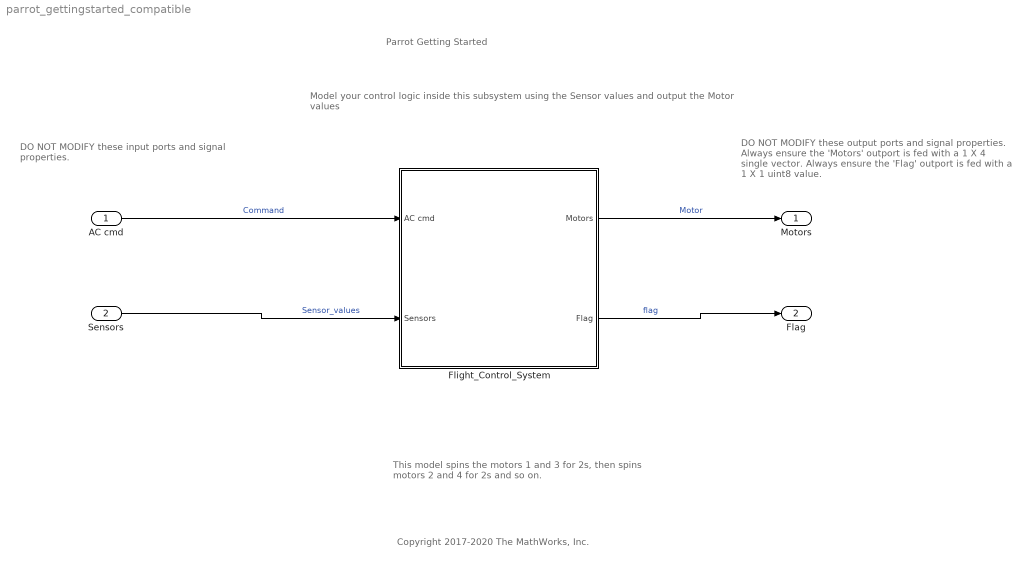
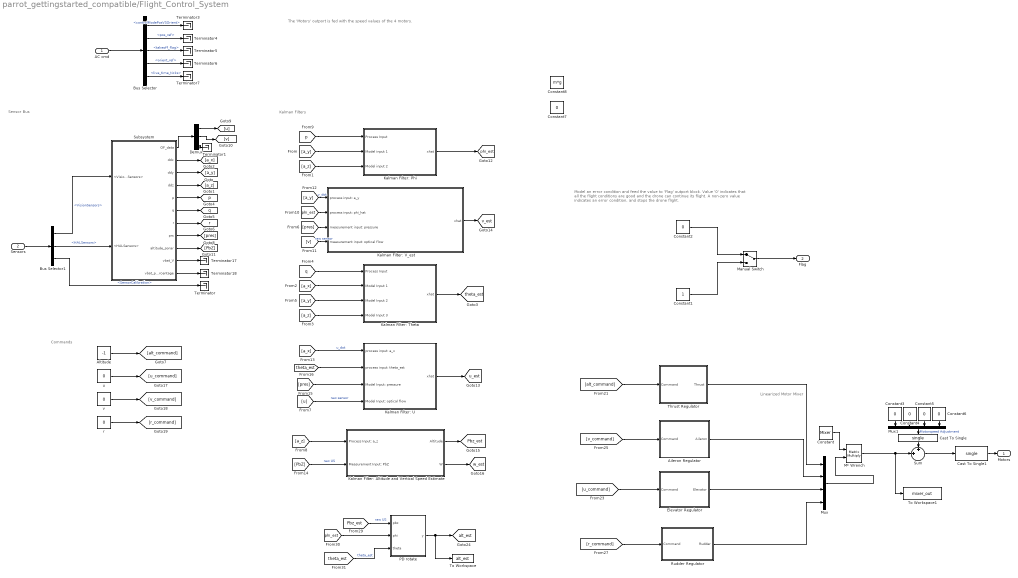
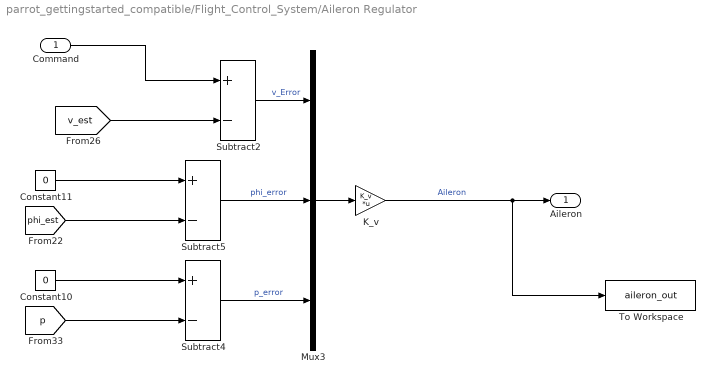
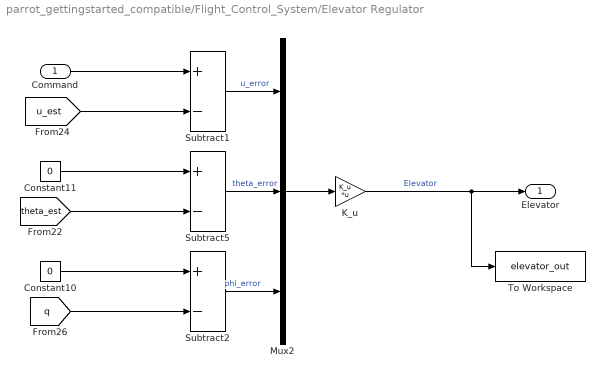
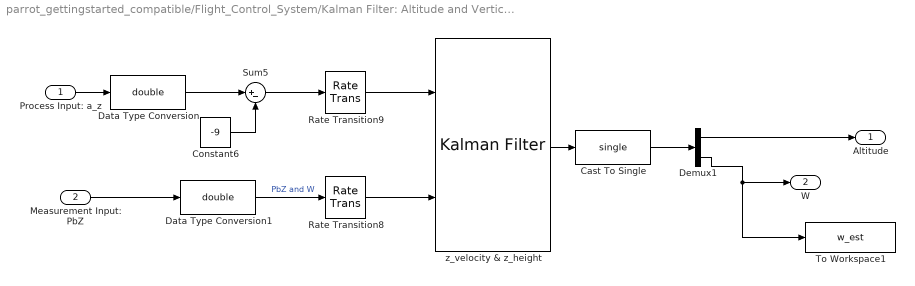
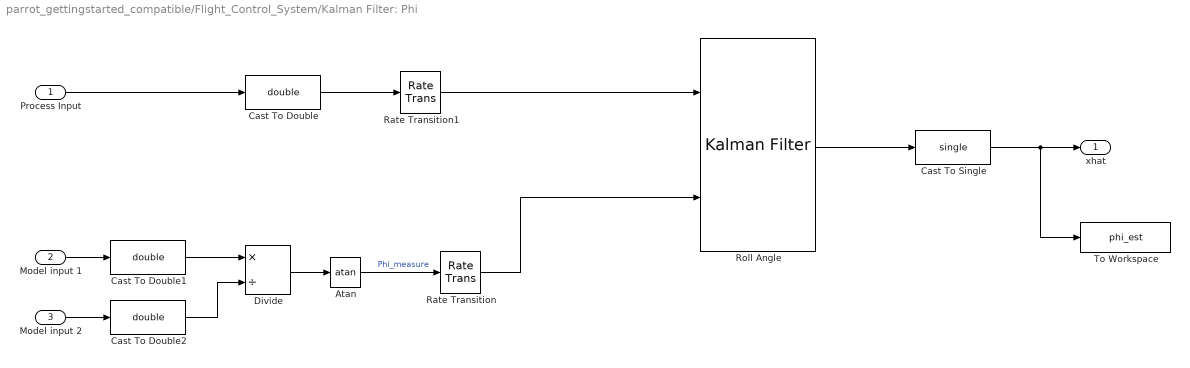
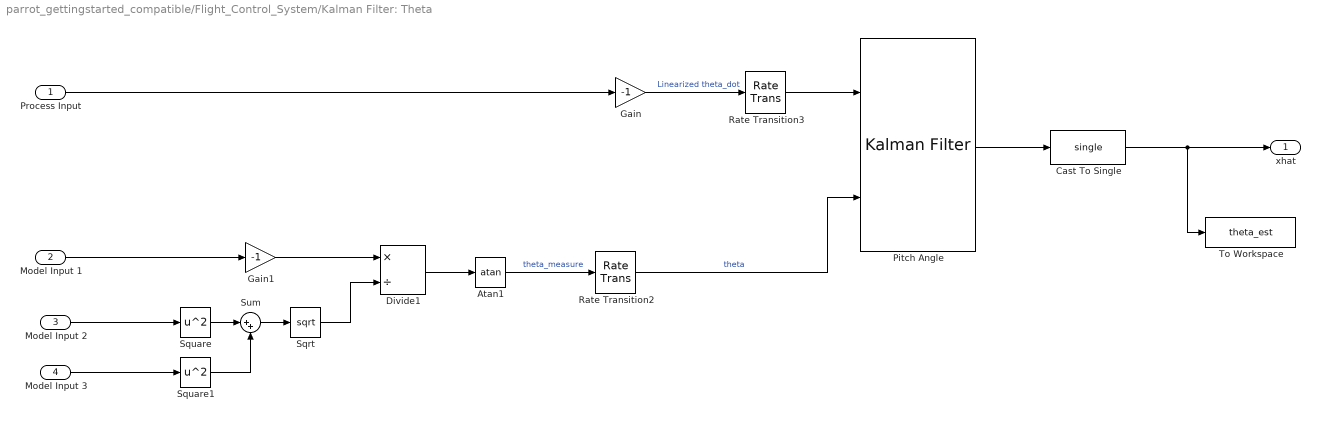
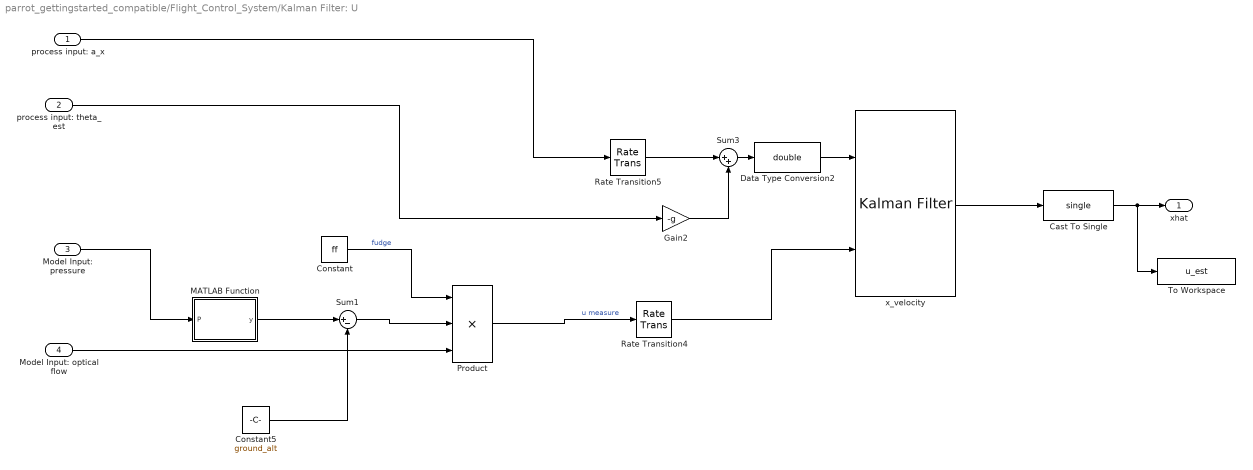
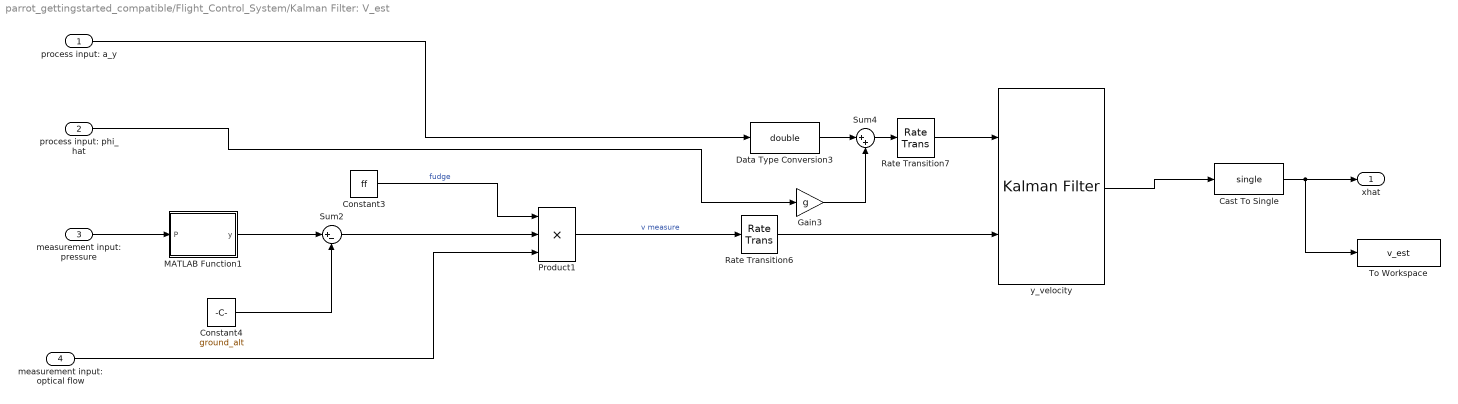
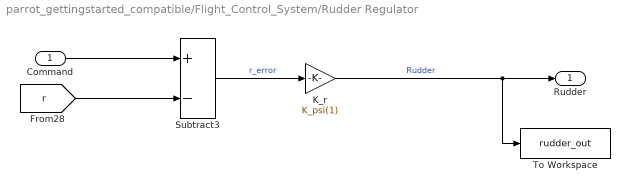
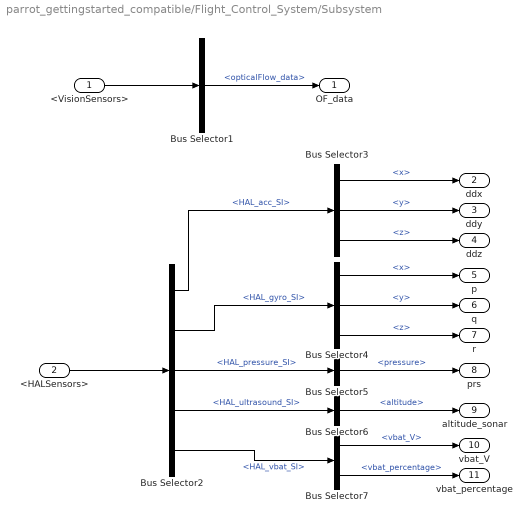
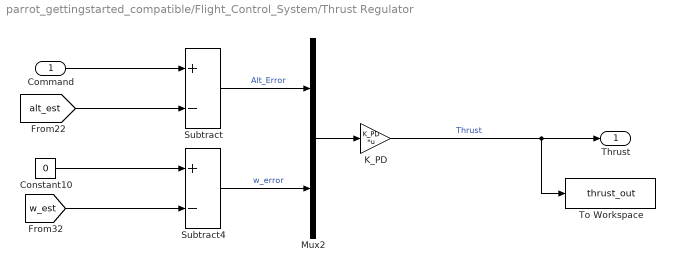
== matlab function parrot_gettingstarted_compatible/Flight_Control_System/Kalman Filter: U/MATLAB Function ==
function y = z_pres(P)
g = 9.8; % acceleration due to gravity m/s^2
M = 0.0289644; % molar mass of air in kg/mol
R = 8.31432; % universal gas constant Nm/mol/k
p0 = 101325; % Pa standard pressure

T =288.15;  % Assumed temperature in kelvin
K =-g*M/R/T;
z_hypsometric = 1/K*log(P/p0);
y = z_hypsometric;

== matlab function parrot_gettingstarted_compatible/Flight_Control_System/PD rotate ==
function y = rotate_BE(pbz, phi, theta)
roll_BE = [1 0 0; 0 cos(phi) sin(phi); 0 -sin(phi) cos(phi)]';
pitch_BE = [cos(theta) 0 -sin(theta); 0 1 0; sin(theta) 0 cos(theta);]';
%yaw_BE = simplify(inv([cos(psi) sin(psi) 0; -sin(psi) cos(psi) 0; 0 0 1;]));
rotater = roll_BE*pitch_BE*pbz;
y = rotater(3);

== matlab function parrot_gettingstarted_compatible/Flight_Control_System/Kalman Filter: V_est/MATLAB Function1 ==
function y = z_pres(P)
g = 9.8; % acceleration due to gravity m/s^2
M = 0.0289644; % molar mass of air in kg/mol
R = 8.31432; % universal gas constant Nm/mol/k
p0 = 101325; % Pa standard pressure

T =288.15;  % Assumed temperature in kelvin
K =-g*M/R/T;
z_hypsometric = 1/K*log(P/p0);
y = z_hypsometric;

/*
 * parrot_gettingstarted_compatible.c
 *
 * Academic License - for use in teaching, academic research, and meeting
 * course requirements at degree granting institutions only.  Not for
 * government, commercial, or other organizational use.
 *
 * Code generation for model "parrot_gettingstarted_compatible".
 *
 * Model version              : 4.2
 * Simulink Coder version : 9.7 (R2022a) 13-Nov-2021
 * C source code generated on : Tue May  3 20:54:06 2022
 *
 * Target selection: ert.tlc
 * Note: GRT includes extra infrastructure and instrumentation for prototyping
 * Embedded hardware selection: ARM Compatible->ARM 9
 * Code generation objectives: Unspecified
 * Validation result: Not run
 */

#include "parrot_gettingstarted_compatible.h"
#include "rtwtypes.h"
#include "parrot_gettingstarted_compatible_private.h"
#include <math.h>
#include "parrot_gettingstarted_compatible_types.h"
#include <string.h>
#include "rt_nonfinite.h"

/* Exported block signals */
CommandBus cmd_inport;                 /* '<Root>/AC cmd' */
SensorsBus sensor_inport;              /* '<Root>/Sensors' */
real32_T motors_outport[4];            /* '<S1>/Cast To Single1' */
uint8_T flag_outport;                  /* '<S1>/Manual Switch' */

/* Block signals (default storage) */
B_parrot_gettingstarted_compa_T parrot_gettingstarted_compati_B;

/* Block states (default storage) */
DW_parrot_gettingstarted_comp_T parrot_gettingstarted_compat_DW;

/* External outputs (root outports fed by signals with default storage) */
ExtY_parrot_gettingstarted_co_T parrot_gettingstarted_compati_Y;

/* Real-time model */
static RT_MODEL_parrot_gettingstarte_T parrot_gettingstarted_compat_M_;
RT_MODEL_parrot_gettingstarte_T *const parrot_gettingstarted_compat_M =
  &parrot_gettingstarted_compat_M_;

/*
 * System initialize for enable system:
 *    '<S43>/Enabled Subsystem'
 *    '<S98>/Enabled Subsystem'
 *    '<S153>/Enabled Subsystem'
 */
void parrot_ge_EnabledSubsystem_Init(B_EnabledSubsystem_parrot_get_T *localB,
  P_EnabledSubsystem_parrot_get_T *localP)
{
  /* SystemInitialize for Product: '<S69>/Product2' incorporates:
   *  Outport: '<S69>/deltax'
   */
  localB->Product2[0] = localP->deltax_Y0;
  localB->Product2[1] = localP->deltax_Y0;
}

/*
 * Disable for enable system:
 *    '<S43>/Enabled Subsystem'
 *    '<S98>/Enabled Subsystem'
 *    '<S153>/Enabled Subsystem'
 */
void parrot_EnabledSubsystem_Disable(B_EnabledSubsystem_parrot_get_T *localB,
  DW_EnabledSubsystem_parrot_ge_T *localDW, P_EnabledSubsystem_parrot_get_T
  *localP)
{
  /* Disable for Product: '<S69>/Product2' incorporates:
   *  Outport: '<S69>/deltax'
   */
  localB->Product2[0] = localP->deltax_Y0;
  localB->Product2[1] = localP->deltax_Y0;
  localDW->EnabledSubsystem_MODE = false;
}

/*
 * Start for enable system:
 *    '<S43>/Enabled Subsystem'
 *    '<S98>/Enabled Subsystem'
 *    '<S153>/Enabled Subsystem'
 */
void parrot_g_EnabledSubsystem_Start(DW_EnabledSubsystem_parrot_ge_T *localDW)
{
  localDW->EnabledSubsystem_MODE = false;
}

/*
 * Output and update for enable system:
 *    '<S43>/Enabled Subsystem'
 *    '<S98>/Enabled Subsystem'
 *    '<S153>/Enabled Subsystem'
 */
void parrot_getting_EnabledSubsystem(boolean_T rtu_Enable, const real_T rtu_Mk[2],
  const real_T rtu_Ck[2], real_T rtu_yk, const real_T rtu_xhatkk1[2],
  B_EnabledSubsystem_parrot_get_T *localB, DW_EnabledSubsystem_parrot_ge_T
  *localDW, P_EnabledSubsystem_parrot_get_T *localP)
{
  real_T rtb_Add1;

  /* Outputs for Enabled SubSystem: '<S43>/Enabled Subsystem' incorporates:
   *  EnablePort: '<S69>/Enable'
   */
  if (rtu_Enable) {
    localDW->EnabledSubsystem_MODE = true;

    /* Sum: '<S69>/Add1' incorporates:
     *  Product: '<S69>/Product'
     */
    rtb_Add1 = rtu_yk - (rtu_Ck[0] * rtu_xhatkk1[0] + rtu_Ck[1] * rtu_xhatkk1[1]);

    /* Product: '<S69>/Product2' */
    localB->Product2[0] = rtu_Mk[0] * rtb_Add1;
    localB->Product2[1] = rtu_Mk[1] * rtb_Add1;
  } else if (localDW->EnabledSubsystem_MODE) {
    parrot_EnabledSubsystem_Disable(localB, localDW, localP);
  }

  /* End of Outputs for SubSystem: '<S43>/Enabled Subsystem' */
}

/*
 * System initialize for enable system:
 *    '<S91>/MeasurementUpdate'
 *    '<S146>/MeasurementUpdate'
 */
void parrot_g_MeasurementUpdate_Init(B_MeasurementUpdate_parrot_ge_T *localB,
  P_MeasurementUpdate_parrot_ge_T *localP)
{
  /* SystemInitialize for Product: '<S122>/Product3' incorporates:
   *  Outport: '<S122>/L*(y[k]-yhat[k|k-1])'
   */
  localB->Product3[0] = localP->Lykyhatkk1_Y0;
  localB->Product3[1] = localP->Lykyhatkk1_Y0;
}

/*
 * Disable for enable system:
 *    '<S91>/MeasurementUpdate'
 *    '<S146>/MeasurementUpdate'
 */
void parro_MeasurementUpdate_Disable(B_MeasurementUpdate_parrot_ge_T *localB,
  DW_MeasurementUpdate_parrot_g_T *localDW, P_MeasurementUpdate_parrot_ge_T
  *localP)
{
  /* Disable for Product: '<S122>/Product3' incorporates:
   *  Outport: '<S122>/L*(y[k]-yhat[k|k-1])'
   */
  localB->Product3[0] = localP->Lykyhatkk1_Y0;
  localB->Product3[1] = localP->Lykyhatkk1_Y0;
  localDW->MeasurementUpdate_MODE = false;
}

/*
 * Start for enable system:
 *    '<S91>/MeasurementUpdate'
 *    '<S146>/MeasurementUpdate'
 */
void parrot__MeasurementUpdate_Start(DW_MeasurementUpdate_parrot_g_T *localDW)
{
  localDW->MeasurementUpdate_MODE = false;
}

/*
 * Output and update for enable system:
 *    '<S91>/MeasurementUpdate'
 *    '<S146>/MeasurementUpdate'
 */
void parrot_gettin_MeasurementUpdate(boolean_T rtu_Enable, const real_T rtu_Lk[2],
  real_T rtu_yk, const real_T rtu_Ck[2], const real_T rtu_xhatkk1[2], const
  real_T rtu_Dk[2], const real_T rtu_uk[2], B_MeasurementUpdate_parrot_ge_T
  *localB, DW_MeasurementUpdate_parrot_g_T *localDW,
  P_MeasurementUpdate_parrot_ge_T *localP)
{
  real_T rtb_Sum_k;

  /* Outputs for Enabled SubSystem: '<S91>/MeasurementUpdate' incorporates:
   *  EnablePort: '<S122>/Enable'
   */
  if (rtu_Enable) {
    localDW->MeasurementUpdate_MODE = true;

    /* Sum: '<S122>/Sum' incorporates:
     *  Product: '<S122>/C[k]*xhat[k|k-1]'
     *  Product: '<S122>/D[k]*u[k]'
     *  Sum: '<S122>/Add1'
     */
    rtb_Sum_k = rtu_yk - ((rtu_Ck[0] * rtu_xhatkk1[0] + rtu_Ck[1] * rtu_xhatkk1
      [1]) + (rtu_Dk[0] * rtu_uk[0] + rtu_Dk[1] * rtu_uk[1]));

    /* Product: '<S122>/Product3' */
    localB->Product3[0] = rtu_Lk[0] * rtb_Sum_k;
    localB->Product3[1] = rtu_Lk[1] * rtb_Sum_k;
  } else if (localDW->MeasurementUpdate_MODE) {
    parro_MeasurementUpdate_Disable(localB, localDW, localP);
  }

  /* End of Outputs for SubSystem: '<S91>/MeasurementUpdate' */
}

/*
 * Output and update for atomic system:
 *    '<S12>/MATLAB Function1'
 *    '<S13>/MATLAB Function1'
 */
void parrot_gettings_MATLABFunction1(real32_T rtu_P,
  B_MATLABFunction1_parrot_gett_T *localB)
{
  /* MATLAB Function 'Flight_Control_System/Subsystem3/MATLAB Function1': '<S180>:1' */
  /* '<S180>:1:9' */
  localB->y = (real32_T)log(rtu_P / 101325.0F) * -8440.23926F;

  /* '<S180>:1:10' */
}

/* Model step function */
void parrot_gettingstarted_compatible_step(void)
{
  real_T rtb_Dkuk_0;
  real_T rtb_Sum_1;
  real_T rtb_Thrust_idx_3;
  int32_T aoffset;
  int32_T coffset;
  int32_T i;
  int32_T j;
  real32_T B_tmp;
  real32_T rtb_theta_measure;
  real32_T s;

  /* DataTypeConversion: '<S60>/Conversion' incorporates:
   *  Constant: '<S16>/KalmanGainM'
   */
  parrot_gettingstarted_compati_B.Conversion[0] =
    parrot_gettingstarted_compati_P.KalmanGainM_Value[0];
  parrot_gettingstarted_compati_B.Conversion[1] =
    parrot_gettingstarted_compati_P.KalmanGainM_Value[1];

  /* Delay: '<S15>/MemoryX' incorporates:
   *  Constant: '<S15>/X0'
   */
  if (parrot_gettingstarted_compat_DW.icLoad) {
    parrot_gettingstarted_compat_DW.MemoryX_DSTATE[0] =
      parrot_gettingstarted_compati_P.X0_Value[0];
    parrot_gettingstarted_compat_DW.MemoryX_DSTATE[1] =
      parrot_gettingstarted_compati_P.X0_Value[1];
  }

  /* Outputs for Enabled SubSystem: '<S43>/Enabled Subsystem' */
  /* Constant: '<S15>/Enable' incorporates:
   *  Constant: '<S15>/C'
   *  DataTypeConversion: '<S4>/Data Type Conversion1'
   *  Delay: '<S15>/MemoryX'
   *  Inport: '<Root>/Sensors'
   */
  parrot_getting_EnabledSubsystem(parrot_gettingstarted_compati_P.Enable_Value,
    parrot_gettingstarted_compati_B.Conversion,
    parrot_gettingstarted_compati_P.C_Value, (real_T)
    sensor_inport.HALSensors.HAL_ultrasound_SI.altitude,
    parrot_gettingstarted_compat_DW.MemoryX_DSTATE,
    &parrot_gettingstarted_compati_B.EnabledSubsystem,
    &parrot_gettingstarted_compat_DW.EnabledSubsystem,
    &parrot_gettingstarted_compati_P.EnabledSubsystem);

  /* End of Outputs for SubSystem: '<S43>/Enabled Subsystem' */

  /* Sum: '<S43>/Add' incorporates:
   *  Delay: '<S15>/MemoryX'
   */
  parrot_gettingstarted_compati_B.Conversion[0] =
    parrot_gettingstarted_compati_B.EnabledSubsystem.Product2[0] +
    parrot_gettingstarted_compat_DW.MemoryX_DSTATE[0];
  parrot_gettingstarted_compati_B.Conversion[1] =
    parrot_gettingstarted_compati_B.EnabledSubsystem.Product2[1] +
    parrot_gettingstarted_compat_DW.MemoryX_DSTATE[1];

  /* DataTypeConversion: '<S4>/Cast To Single' */
  parrot_gettingstarted_compati_B.CastToSingle[0] = (real32_T)
    parrot_gettingstarted_compati_B.Conversion[0];
  parrot_gettingstarted_compati_B.CastToSingle[1] = (real32_T)
    parrot_gettingstarted_compati_B.Conversion[1];

  /* DataTypeConversion: '<S5>/Cast To Double2' incorporates:
   *  Inport: '<Root>/Sensors'
   */
  parrot_gettingstarted_compati_B.Thrust = sensor_inport.HALSensors.HAL_acc_SI.z;

  /* Trigonometry: '<S5>/Atan' incorporates:
   *  DataTypeConversion: '<S5>/Cast To Double1'
   *  Inport: '<Root>/Sensors'
   *  Product: '<S5>/Divide'
   */
  parrot_gettingstarted_compati_B.Phi_measure = atan
    (sensor_inport.HALSensors.HAL_acc_SI.y /
     parrot_gettingstarted_compati_B.Thrust);

  /* Trigonometry: '<S6>/Atan1' incorporates:
   *  Gain: '<S6>/Gain1'
   *  Inport: '<Root>/Sensors'
   *  Math: '<S6>/Square'
   *  Math: '<S6>/Square1'
   *  Product: '<S6>/Divide1'
   *  Sqrt: '<S6>/Sqrt'
   *  Sum: '<S6>/Sum'
   */
  rtb_theta_measure = (real32_T)atan(parrot_gettingstarted_compati_P.Gain1_Gain *
    sensor_inport.HALSensors.HAL_acc_SI.x / (real32_T)sqrt
    (sensor_inport.HALSensors.HAL_acc_SI.y *
     sensor_inport.HALSensors.HAL_acc_SI.y +
     sensor_inport.HALSensors.HAL_acc_SI.z *
     sensor_inport.HALSensors.HAL_acc_SI.z));

  /* MATLAB Function: '<S1>/PD rotate' */
  /* MATLAB Function 'Flight_Control_System/PD rotate': '<S7>:1' */
  /* '<S7>:1:2' */
  parrot_gettingstarted_compati_B.vmeasure = sin
    (parrot_gettingstarted_compati_B.Phi_measure);
  parrot_gettingstarted_compati_B.Thrust = cos
    (parrot_gettingstarted_compati_B.Phi_measure);
  parrot_gettingstarted_compati_B.A[1] = 0.0;
  parrot_gettingstarted_compati_B.A[4] = parrot_gettingstarted_compati_B.Thrust;
  parrot_gettingstarted_compati_B.A[7] =
    parrot_gettingstarted_compati_B.vmeasure;
  parrot_gettingstarted_compati_B.A[2] = 0.0;
  parrot_gettingstarted_compati_B.A[5] =
    -parrot_gettingstarted_compati_B.vmeasure;
  parrot_gettingstarted_compati_B.A[8] = parrot_gettingstarted_compati_B.Thrust;
  s = (real32_T)sin(rtb_theta_measure);
  B_tmp = (real32_T)cos(rtb_theta_measure);
  parrot_gettingstarted_compati_B.B[0] = B_tmp;
  parrot_gettingstarted_compati_B.B[3] = 0.0F;
  parrot_gettingstarted_compati_B.B[6] = -s;
  parrot_gettingstarted_compati_B.A[0] = 1.0;
  parrot_gettingstarted_compati_B.B[1] = 0.0F;
  parrot_gettingstarted_compati_B.A[3] = 0.0;
  parrot_gettingstarted_compati_B.B[4] = 1.0F;
  parrot_gettingstarted_compati_B.A[6] = 0.0;
  parrot_gettingstarted_compati_B.B[7] = 0.0F;
  parrot_gettingstarted_compati_B.B[2] = s;
  parrot_gettingstarted_compati_B.B[5] = 0.0F;
  parrot_gettingstarted_compati_B.B[8] = B_tmp;

  /* '<S7>:1:5' */
  for (j = 0; j < 3; j++) {
    coffset = j * 3;
    for (i = 0; i < 3; i++) {
      aoffset = i * 3;
      s = (real32_T)parrot_gettingstarted_compati_B.A[aoffset] *
        parrot_gettingstarted_compati_B.B[j];
      parrot_gettingstarted_compati_B.y[coffset + i] = ((real32_T)
        parrot_gettingstarted_compati_B.A[aoffset + 1] *
        parrot_gettingstarted_compati_B.B[j + 3] + s) + (real32_T)
        parrot_gettingstarted_compati_B.A[aoffset + 2] *
        parrot_gettingstarted_compati_B.B[j + 6];
    }
  }

  /* '<S7>:1:6' */
  s = parrot_gettingstarted_compati_B.CastToSingle[0] *
    parrot_gettingstarted_compati_B.y[2];

  /* End of MATLAB Function: '<S1>/PD rotate' */

  /* SignalConversion generated from: '<S14>/K_PD' incorporates:
   *  Constant: '<S14>/Constant10'
   *  Constant: '<S1>/Altitude'
   *  Sum: '<S14>/Subtract'
   *  Sum: '<S14>/Subtract4'
   */
  parrot_gettingstarted_compati_B.Conversion[1] =
    parrot_gettingstarted_compati_P.Constant10_Value -
    parrot_gettingstarted_compati_B.CastToSingle[1];
  parrot_gettingstarted_compati_B.Conversion[0] =
    parrot_gettingstarted_compati_P.Altitude_Value - s;

  /* Gain: '<S14>/K_PD' */
  parrot_gettingstarted_compati_B.Thrust = parrot_gettingstarted_compati_P.K_PD
    [0] * parrot_gettingstarted_compati_B.Conversion[0];

  /* DataTypeConversion: '<S115>/Conversion' incorporates:
   *  Constant: '<S71>/KalmanGainM'
   */
  parrot_gettingstarted_compati_B.Conversion[0] =
    parrot_gettingstarted_compati_P.KalmanGainM_Value_a[0];

  /* Gain: '<S14>/K_PD' */
  parrot_gettingstarted_compati_B.Thrust +=
    parrot_gettingstarted_compati_P.K_PD[1] *
    parrot_gettingstarted_compati_B.Conversion[1];

  /* DataTypeConversion: '<S115>/Conversion' incorporates:
   *  Constant: '<S71>/KalmanGainM'
   */
  parrot_gettingstarted_compati_B.Conversion[1] =
    parrot_gettingstarted_compati_P.KalmanGainM_Value_a[1];

  /* MATLAB Function: '<S12>/MATLAB Function1' incorporates:
   *  Inport: '<Root>/Sensors'
   */
  parrot_gettings_MATLABFunction1
    (sensor_inport.HALSensors.HAL_pressure_SI.pressure,
     &parrot_gettingstarted_compati_B.sf_MATLABFunction1);

  /* Product: '<S12>/Product1' incorporates:
   *  Constant: '<S12>/Constant10'
   *  Constant: '<S12>/Constant9'
   *  Inport: '<Root>/Sensors'
   *  Sum: '<S12>/Sum2'
   */
  parrot_gettingstarted_compati_B.vmeasure =
    (parrot_gettingstarted_compati_B.sf_MATLABFunction1.y -
     parrot_gettingstarted_compati_P.ground_alt) *
    parrot_gettingstarted_compati_P.ff *
    sensor_inport.VisionSensors.opticalFlow_data[1];

  /* Delay: '<S70>/MemoryX' incorporates:
   *  Constant: '<S70>/X0'
   */
  if (parrot_gettingstarted_compat_DW.icLoad_k) {
    parrot_gettingstarted_compat_DW.MemoryX_DSTATE_p[0] =
      parrot_gettingstarted_compati_P.X0_Value_d[0];
    parrot_gettingstarted_compat_DW.MemoryX_DSTATE_p[1] =
      parrot_gettingstarted_compati_P.X0_Value_d[1];
  }

  /* Outputs for Enabled SubSystem: '<S98>/Enabled Subsystem' */
  /* Constant: '<S70>/Enable' incorporates:
   *  Constant: '<S70>/C'
   *  Delay: '<S70>/MemoryX'
   */
  parrot_getting_EnabledSubsystem(parrot_gettingstarted_compati_P.Enable_Value_l,
    parrot_gettingstarted_compati_B.Conversion,
    parrot_gettingstarted_compati_P.C_Value_k,
    parrot_gettingstarted_compati_B.vmeasure,
    parrot_gettingstarted_compat_DW.MemoryX_DSTATE_p,
    &parrot_gettingstarted_compati_B.EnabledSubsystem_a,
    &parrot_gettingstarted_compat_DW.EnabledSubsystem_a,
    &parrot_gettingstarted_compati_P.EnabledSubsystem_a);

  /* End of Outputs for SubSystem: '<S98>/Enabled Subsystem' */

  /* Sum: '<S98>/Add' incorporates:
   *  Delay: '<S70>/MemoryX'
   */
  parrot_gettingstarted_compati_B.Conversion[0] =
    parrot_gettingstarted_compati_B.EnabledSubsystem_a.Product2[0] +
    parrot_gettingstarted_compat_DW.MemoryX_DSTATE_p[0];
  parrot_gettingstarted_compati_B.Conversion[1] =
    parrot_gettingstarted_compati_B.EnabledSubsystem_a.Product2[1] +
    parrot_gettingstarted_compat_DW.MemoryX_DSTATE_p[1];

  /* Gain: '<S2>/K_v' incorporates:
   *  Constant: '<S1>/v'
   *  Constant: '<S2>/Constant10'
   *  Constant: '<S2>/Constant11'
   *  Inport: '<Root>/Sensors'
   *  Sum: '<S2>/Subtract2'
   *  Sum: '<S2>/Subtract4'
   *  Sum: '<S2>/Subtract5'
   */
  rtb_Dkuk_0 = ((parrot_gettingstarted_compati_P.v_Value -
                 parrot_gettingstarted_compati_B.Conversion[0]) *
                parrot_gettingstarted_compati_P.K_v[0] +
                (parrot_gettingstarted_compati_P.Constant11_Value -
                 parrot_gettingstarted_compati_B.Phi_measure) *
                parrot_gettingstarted_compati_P.K_v[1]) +
    (parrot_gettingstarted_compati_P.Constant10_Value_j -
     sensor_inport.HALSensors.HAL_gyro_SI.x) *
    parrot_gettingstarted_compati_P.K_v[2];

  /* DataTypeConversion: '<S170>/Conversion' incorporates:
   *  Constant: '<S126>/KalmanGainM'
   */
  parrot_gettingstarted_compati_B.Conversion_n[0] =
    parrot_gettingstarted_compati_P.KalmanGainM_Value_o[0];
  parrot_gettingstarted_compati_B.Conversion_n[1] =
    parrot_gettingstarted_compati_P.KalmanGainM_Value_o[1];

  /* MATLAB Function: '<S13>/MATLAB Function1' incorporates:
   *  Inport: '<Root>/Sensors'
   */
  parrot_gettings_MATLABFunction1
    (sensor_inport.HALSensors.HAL_pressure_SI.pressure,
     &parrot_gettingstarted_compati_B.sf_MATLABFunction1_k);

  /* Product: '<S13>/Product1' incorporates:
   *  Constant: '<S13>/Constant10'
   *  Constant: '<S13>/Constant9'
   *  Inport: '<Root>/Sensors'
   *  Sum: '<S13>/Sum2'
   */
  parrot_gettingstarted_compati_B.Phi_measure =
    (parrot_gettingstarted_compati_B.sf_MATLABFunction1_k.y -
     parrot_gettingstarted_compati_P.ground_alt) *
    parrot_gettingstarted_compati_P.ff *
    sensor_inport.VisionSensors.opticalFlow_data[0];

  /* Delay: '<S125>/MemoryX' incorporates:
   *  Constant: '<S125>/X0'
   */
  if (parrot_gettingstarted_compat_DW.icLoad_h) {
    parrot_gettingstarted_compat_DW.MemoryX_DSTATE_d[0] =
      parrot_gettingstarted_compati_P.X0_Value_j[0];
    parrot_gettingstarted_compat_DW.MemoryX_DSTATE_d[1] =
      parrot_gettingstarted_compati_P.X0_Value_j[1];
  }

  /* Outputs for Enabled SubSystem: '<S153>/Enabled Subsystem' */
  /* Constant: '<S125>/Enable' incorporates:
   *  Constant: '<S125>/C'
   *  Delay: '<S125>/MemoryX'
   */
  parrot_getting_EnabledSubsystem(parrot_gettingstarted_compati_P.Enable_Value_k,
    parrot_gettingstarted_compati_B.Conversion_n,
    parrot_gettingstarted_compati_P.C_Value_n,
    parrot_gettingstarted_compati_B.Phi_measure,
    parrot_gettingstarted_compat_DW.MemoryX_DSTATE_d,
    &parrot_gettingstarted_compati_B.EnabledSubsystem_m,
    &parrot_gettingstarted_compat_DW.EnabledSubsystem_m,
    &parrot_gettingstarted_compati_P.EnabledSubsystem_m);

  /* End of Outputs for SubSystem: '<S153>/Enabled Subsystem' */

  /* DataTypeConversion: '<S11>/Cast To Single' incorporates:
   *  Delay: '<S125>/MemoryX'
   *  Sum: '<S153>/Add'
   */
  parrot_gettingstarted_compati_B.CastToSingle_i[0] = (real32_T)
    (parrot_gettingstarted_compati_B.EnabledSubsystem_m.Product2[0] +
     parrot_gettingstarted_compat_DW.MemoryX_DSTATE_d[0]);
  parrot_gettingstarted_compati_B.CastToSingle_i[1] = (real32_T)
    (parrot_gettingstarted_compati_B.EnabledSubsystem_m.Product2[1] +
     parrot_gettingstarted_compat_DW.MemoryX_DSTATE_d[1]);

  /* Gain: '<S3>/K_u' incorporates:
   *  Constant: '<S1>/u'
   *  Constant: '<S3>/Constant10'
   *  Constant: '<S3>/Constant11'
   *  Inport: '<Root>/Sensors'
   *  Sum: '<S3>/Subtract1'
   *  Sum: '<S3>/Subtract2'
   *  Sum: '<S3>/Subtract5'
   */
  rtb_Sum_1 = ((parrot_gettingstarted_compati_P.u_Value -
                parrot_gettingstarted_compati_B.CastToSingle_i[0]) *
               parrot_gettingstarted_compati_P.K_u[0] +
               (parrot_gettingstarted_compati_P.Constant11_Value_p -
                rtb_theta_measure) * parrot_gettingstarted_compati_P.K_u[1]) +
    (parrot_gettingstarted_compati_P.Constant10_Value_c -
     sensor_inport.HALSensors.HAL_gyro_SI.y) *
    parrot_gettingstarted_compati_P.K_u[2];

  /* Gain: '<S8>/K_r' incorporates:
   *  Constant: '<S1>/r'
   *  Inport: '<Root>/Sensors'
   *  Sum: '<S8>/Subtract3'
   */
  parrot_gettingstarted_compati_B.Rudder =
    (parrot_gettingstarted_compati_P.r_Value -
     sensor_inport.HALSensors.HAL_gyro_SI.z) *
    parrot_gettingstarted_compati_P.K_psi[0];

  /* SignalConversion generated from: '<S1>/M* Wrench' incorporates:
   *  Constant: '<S1>/Constant9'
   *  Sum: '<S1>/Sum1'
   */
  rtb_Thrust_idx_3 = parrot_gettingstarted_compati_B.Rudder +
    parrot_gettingstarted_compati_P.Constant9_Value;

  /* Product: '<S1>/M* Wrench' incorporates:
   *  Constant: '<S1>/Constant'
   *  Gain: '<S2>/K_v'
   *  Gain: '<S3>/K_u'
   *  SignalConversion generated from: '<S1>/M* Wrench'
   */
  for (j = 0; j < 4; j++) {
    parrot_gettingstarted_compati_B.TmpSignalConversionAtToWork[j] =
      ((parrot_gettingstarted_compati_P.Mixer[j + 4] * rtb_Dkuk_0 +
        parrot_gettingstarted_compati_P.Mixer[j] *
        parrot_gettingstarted_compati_B.Thrust) +
       parrot_gettingstarted_compati_P.Mixer[j + 8] * rtb_Sum_1) +
      parrot_gettingstarted_compati_P.Mixer[j + 12] * rtb_Thrust_idx_3;
  }

  /* End of Product: '<S1>/M* Wrench' */

  /* Sum: '<S1>/Sum' incorporates:
   *  Constant: '<S1>/Constant3'
   *  DataTypeConversion: '<S1>/Cast To Single'
   */
  rtb_Thrust_idx_3 = (real32_T)parrot_gettingstarted_compati_P.Constant3_Value +
    parrot_gettingstarted_compati_B.TmpSignalConversionAtToWork[0];

  /* Saturate: '<S1>/Saturation' */
  if (rtb_Thrust_idx_3 > parrot_gettingstarted_compati_P.Saturation_UpperSat) {
    /* DataTypeConversion: '<S1>/Cast To Single1' */
    motors_outport[0] = (real32_T)
      parrot_gettingstarted_compati_P.Saturation_UpperSat;
  } else if (rtb_Thrust_idx_3 <
             parrot_gettingstarted_compati_P.Saturation_LowerSat) {
    /* DataTypeConversion: '<S1>/Cast To Single1' */
    motors_outport[0] = (real32_T)
      parrot_gettingstarted_compati_P.Saturation_LowerSat;
  } else {
    /* DataTypeConversion: '<S1>/Cast To Single1' */
    motors_outport[0] = (real32_T)rtb_Thrust_idx_3;
  }

  /* Sum: '<S1>/Sum' incorporates:
   *  Constant: '<S1>/Constant4'
   *  DataTypeConversion: '<S1>/Cast To Single'
   */
  rtb_Thrust_idx_3 = (real32_T)parrot_gettingstarted_compati_P.Constant4_Value +
    parrot_gettingstarted_compati_B.TmpSignalConversionAtToWork[1];

  /* Saturate: '<S1>/Saturation' */
  if (rtb_Thrust_idx_3 > parrot_gettingstarted_compati_P.Saturation_UpperSat) {
    /* DataTypeConversion: '<S1>/Cast To Single1' */
    motors_outport[1] = (real32_T)
      parrot_gettingstarted_compati_P.Saturation_UpperSat;
  } else if (rtb_Thrust_idx_3 <
             parrot_gettingstarted_compati_P.Saturation_LowerSat) {
    /* DataTypeConversion: '<S1>/Cast To Single1' */
    motors_outport[1] = (real32_T)
      parrot_gettingstarted_compati_P.Saturation_LowerSat;
  } else {
    /* DataTypeConversion: '<S1>/Cast To Single1' */
    motors_outport[1] = (real32_T)rtb_Thrust_idx_3;
  }

  /* Sum: '<S1>/Sum' incorporates:
   *  Constant: '<S1>/Constant5'
   *  DataTypeConversion: '<S1>/Cast To Single'
   */
  rtb_Thrust_idx_3 = (real32_T)parrot_gettingstarted_compati_P.Constant5_Value +
    parrot_gettingstarted_compati_B.TmpSignalConversionAtToWork[2];

  /* Saturate: '<S1>/Saturation' */
  if (rtb_Thrust_idx_3 > parrot_gettingstarted_compati_P.Saturation_UpperSat) {
    /* DataTypeConversion: '<S1>/Cast To Single1' */
    motors_outport[2] = (real32_T)
      parrot_gettingstarted_compati_P.Saturation_UpperSat;
  } else if (rtb_Thrust_idx_3 <
             parrot_gettingstarted_compati_P.Saturation_LowerSat) {
    /* DataTypeConversion: '<S1>/Cast To Single1' */
    motors_outport[2] = (real32_T)
      parrot_gettingstarted_compati_P.Saturation_LowerSat;
  } else {
    /* DataTypeConversion: '<S1>/Cast To Single1' */
    motors_outport[2] = (real32_T)rtb_Thrust_idx_3;
  }

  /* Sum: '<S1>/Sum' incorporates:
   *  Constant: '<S1>/Constant6'
   *  DataTypeConversion: '<S1>/Cast To Single'
   */
  rtb_Thrust_idx_3 = (real32_T)parrot_gettingstarted_compati_P.Constant6_Value +
    parrot_gettingstarted_compati_B.TmpSignalConversionAtToWork[3];

  /* Saturate: '<S1>/Saturation' */
  if (rtb_Thrust_idx_3 > parrot_gettingstarted_compati_P.Saturation_UpperSat) {
    /* DataTypeConversion: '<S1>/Cast To Single1' */
    motors_outport[3] = (real32_T)
      parrot_gettingstarted_compati_P.Saturation_UpperSat;
  } else if (rtb_Thrust_idx_3 <
             parrot_gettingstarted_compati_P.Saturation_LowerSat) {
    /* DataTypeConversion: '<S1>/Cast To Single1' */
    motors_outport[3] = (real32_T)
      parrot_gettingstarted_compati_P.Saturation_LowerSat;
  } else {
    /* DataTypeConversion: '<S1>/Cast To Single1' */
    motors_outport[3] = (real32_T)rtb_Thrust_idx_3;
  }

  /* Outport: '<Root>/Motors' incorporates:
   *  DataTypeConversion: '<S1>/Cast To Single1'
   */
  parrot_gettingstarted_compati_Y.Motors[0] = motors_outport[0];
  parrot_gettingstarted_compati_Y.Motors[1] = motors_outport[1];
  parrot_gettingstarted_compati_Y.Motors[2] = motors_outport[2];
  parrot_gettingstarted_compati_Y.Motors[3] = motors_outport[3];

  /* ManualSwitch: '<S1>/Manual Switch' */
  if (parrot_gettingstarted_compati_P.ManualSwitch_CurrentSetting == 1) {
    /* ManualSwitch: '<S1>/Manual Switch' incorporates:
     *  Constant: '<S1>/Constant2'
     */
    flag_outport = parrot_gettingstarted_compati_P.Constant2_Value;
  } else {
    /* ManualSwitch: '<S1>/Manual Switch' incorporates:
     *  Constant: '<S1>/Constant1'
     */
    flag_outport = parrot_gettingstarted_compati_P.Constant1_Value;
  }

  /* End of ManualSwitch: '<S1>/Manual Switch' */

  /* Outport: '<Root>/Flag' */
  parrot_gettingstarted_compati_Y.Flag = flag_outport;

  /* ToWorkspace: '<S1>/To Workspace1' */
  {
    double locTime = parrot_gettingstarted_compat_M->Timing.taskTime0
      ;
    rt_UpdateStructLogVar((StructLogVar *)
                          parrot_gettingstarted_compat_DW.ToWorkspace1_PWORK.LoggedData,
                          &locTime,
                          &parrot_gettingstarted_compati_B.TmpSignalConversionAtToWork
                          [0]);
  }

  /* SignalConversion generated from: '<S1>/To Workspace2' incorporates:
   *  Gain: '<S2>/K_v'
   *  Gain: '<S3>/K_u'
   */
  parrot_gettingstarted_compati_B.TmpSignalConversionAtToWork[0] =
    parrot_gettingstarted_compati_B.Thrust;
  parrot_gettingstarted_compati_B.TmpSignalConversionAtToWork[1] = rtb_Dkuk_0;
  parrot_gettingstarted_compati_B.TmpSignalConversionAtToWork[2] = rtb_Sum_1;
  parrot_gettingstarted_compati_B.TmpSignalConversionAtToWork[3] =
    parrot_gettingstarted_compati_B.Rudder;

  /* ToWorkspace: '<S1>/To Workspace2' */
  {
    double locTime = parrot_gettingstarted_compat_M->Timing.taskTime0
      ;
    rt_UpdateStructLogVar((StructLogVar *)
                          parrot_gettingstarted_compat_DW.ToWorkspace2_PWORK.LoggedData,
                          &locTime,
                          &parrot_gettingstarted_compati_B.TmpSignalConversionAtToWork
                          [0]);
  }

  /* ToWorkspace: '<S14>/To Workspace' */
  {
    double locTime = parrot_gettingstarted_compat_M->Timing.taskTime0
      ;
    rt_UpdateStructLogVar((StructLogVar *)
                          parrot_gettingstarted_compat_DW.ToWorkspace_PWORK.LoggedData,
                          &locTime, &parrot_gettingstarted_compati_B.Thrust);
  }

  /* ToWorkspace: '<S1>/To Workspace' */
  {
    double locTime = parrot_gettingstarted_compat_M->Timing.taskTime0
      ;
    rt_UpdateStructLogVar((StructLogVar *)
                          parrot_gettingstarted_compat_DW.ToWorkspace_PWORK_k.LoggedData,
                          &locTime, &s);
  }

  /* ToWorkspace: '<S4>/To Workspace1' */
  {
    double locTime = parrot_gettingstarted_compat_M->Timing.taskTime0
      ;
    rt_UpdateStructLogVar((StructLogVar *)
                          parrot_gettingstarted_compat_DW.ToWorkspace1_PWORK_c.LoggedData,
                          &locTime,
                          &parrot_gettingstarted_compati_B.CastToSingle[1]);
  }

  /* Sum: '<S4>/Sum5' incorporates:
   *  Constant: '<S4>/Constant6'
   *  DataTypeConversion: '<S5>/Cast To Double2'
   *  Inport: '<Root>/Sensors'
   */
  parrot_gettingstarted_compati_B.Thrust = sensor_inport.HALSensors.HAL_acc_SI.z
    - parrot_gettingstarted_compati_P.Constant6_Value_g;

  /* Outputs for Enabled SubSystem: '<S36>/MeasurementUpdate' incorporates:
   *  EnablePort: '<S67>/Enable'
   */
  /* Constant: '<S15>/Enable' */
  if (parrot_gettingstarted_compati_P.Enable_Value) {
    parrot_gettingstarted_compat_DW.MeasurementUpdate_MODE = true;

    /* Sum: '<S67>/Sum' incorporates:
     *  Constant: '<S15>/C'
     *  Constant: '<S15>/D'
     *  DataTypeConversion: '<S4>/Data Type Conversion1'
     *  Delay: '<S15>/MemoryX'
     *  Inport: '<Root>/Sensors'
     *  Product: '<S67>/C[k]*xhat[k|k-1]'
     *  Product: '<S67>/D[k]*u[k]'
     *  Sum: '<S67>/Add1'
     */
    rtb_Sum_1 = sensor_inport.HALSensors.HAL_ultrasound_SI.altitude -
      ((parrot_gettingstarted_compati_P.C_Value[0] *
        parrot_gettingstarted_compat_DW.MemoryX_DSTATE[0] +
        parrot_gettingstarted_compati_P.C_Value[1] *
        parrot_gettingstarted_compat_DW.MemoryX_DSTATE[1]) +
       parrot_gettingstarted_compati_P.D_Value *
       parrot_gettingstarted_compati_B.Thrust);

    /* Product: '<S67>/Product3' incorporates:
     *  Constant: '<S16>/KalmanGainL'
     */
    parrot_gettingstarted_compati_B.Product3[0] =
      parrot_gettingstarted_compati_P.KalmanGainL_Value[0] * rtb_Sum_1;
    parrot_gettingstarted_compati_B.Product3[1] =
      parrot_gettingstarted_compati_P.KalmanGainL_Value[1] * rtb_Sum_1;
  } else if (parrot_gettingstarted_compat_DW.MeasurementUpdate_MODE) {
    /* Disable for Product: '<S67>/Product3' incorporates:
     *  Outport: '<S67>/L*(y[k]-yhat[k|k-1])'
     */
    parrot_gettingstarted_compati_B.Product3[0] =
      parrot_gettingstarted_compati_P.Lykyhatkk1_Y0;
    parrot_gettingstarted_compati_B.Product3[1] =
      parrot_gettingstarted_compati_P.Lykyhatkk1_Y0;
    parrot_gettingstarted_compat_DW.MeasurementUpdate_MODE = false;
  }

  /* End of Outputs for SubSystem: '<S36>/MeasurementUpdate' */

  /* ToWorkspace: '<S10>/To Workspace3' */
  {
    double locTime = parrot_gettingstarted_compat_M->Timing.taskTime0
      ;
    rt_UpdateStructLogVar((StructLogVar *)
                          parrot_gettingstarted_compat_DW.ToWorkspace3_PWORK.LoggedData,
                          &locTime, &parrot_gettingstarted_compati_B.Conversion
                          [0]);
  }

  /* ToWorkspace: '<S10>/To Workspace4' */
  {
    double locTime = parrot_gettingstarted_compat_M->Timing.taskTime0
      ;
    rt_UpdateStructLogVar((StructLogVar *)
                          parrot_gettingstarted_compat_DW.ToWorkspace4_PWORK.LoggedData,
                          &locTime, &parrot_gettingstarted_compati_B.Conversion
                          [1]);
  }

  /* DataTypeConversion: '<S10>/Cast To Double' incorporates:
   *  Inport: '<Root>/Sensors'
   */
  parrot_gettingstarted_compati_B.Conversion[0] =
    sensor_inport.HALSensors.HAL_acc_SI.y;
  parrot_gettingstarted_compati_B.Conversion[1] =
    sensor_inport.HALSensors.HAL_gyro_SI.x;

  /* Outputs for Enabled SubSystem: '<S91>/MeasurementUpdate' */
  /* Constant: '<S70>/Enable' incorporates:
   *  Constant: '<S70>/C'
   *  Constant: '<S70>/D'
   *  Constant: '<S71>/KalmanGainL'
   *  Delay: '<S70>/MemoryX'
   */
  parrot_gettin_MeasurementUpdate(parrot_gettingstarted_compati_P.Enable_Value_l,
    parrot_gettingstarted_compati_P.KalmanGainL_Value_p,
    parrot_gettingstarted_compati_B.vmeasure,
    parrot_gettingstarted_compati_P.C_Value_k,
    parrot_gettingstarted_compat_DW.MemoryX_DSTATE_p,
    parrot_gettingstarted_compati_P.D_Value_e,
    parrot_gettingstarted_compati_B.Conversion,
    &parrot_gettingstarted_compati_B.MeasurementUpdate_d,
    &parrot_gettingstarted_compat_DW.MeasurementUpdate_d,
    &parrot_gettingstarted_compati_P.MeasurementUpdate_d);

  /* End of Outputs for SubSystem: '<S91>/MeasurementUpdate' */

  /* ToWorkspace: '<S11>/To Workspace5' */
  {
    double locTime = parrot_gettingstarted_compat_M->Timing.taskTime0
      ;
    rt_UpdateStructLogVar((StructLogVar *)
                          parrot_gettingstarted_compat_DW.ToWorkspace5_PWORK.LoggedData,
                          &locTime,
                          &parrot_gettingstarted_compati_B.CastToSingle_i[0]);
  }

  /* ToWorkspace: '<S11>/To Workspace6' */
  {
    double locTime = parrot_gettingstarted_compat_M->Timing.taskTime0
      ;
    rt_UpdateStructLogVar((StructLogVar *)
                          parrot_gettingstarted_compat_DW.ToWorkspace6_PWORK.LoggedData,
                          &locTime,
                          &parrot_gettingstarted_compati_B.CastToSingle_i[1]);
  }

  /* DataTypeConversion: '<S11>/Cast To Double' incorporates:
   *  Inport: '<Root>/Sensors'
   */
  parrot_gettingstarted_compati_B.Conversion_n[0] =
    sensor_inport.HALSensors.HAL_acc_SI.x;
  parrot_gettingstarted_compati_B.Conversion_n[1] =
    sensor_inport.HALSensors.HAL_gyro_SI.y;

  /* Outputs for Enabled SubSystem: '<S146>/MeasurementUpdate' */
  /* Constant: '<S125>/Enable' incorporates:
   *  Constant: '<S125>/C'
   *  Constant: '<S125>/D'
   *  Constant: '<S126>/KalmanGainL'
   *  Delay: '<S125>/MemoryX'
   */
  parrot_gettin_MeasurementUpdate(parrot_gettingstarted_compati_P.Enable_Value_k,
    parrot_gettingstarted_compati_P.KalmanGainL_Value_j,
    parrot_gettingstarted_compati_B.Phi_measure,
    parrot_gettingstarted_compati_P.C_Value_n,
    parrot_gettingstarted_compat_DW.MemoryX_DSTATE_d,
    parrot_gettingstarted_compati_P.D_Value_n,
    parrot_gettingstarted_compati_B.Conversion_n,
    &parrot_gettingstarted_compati_B.MeasurementUpdate_b,
    &parrot_gettingstarted_compat_DW.MeasurementUpdate_b,
    &parrot_gettingstarted_compati_P.MeasurementUpdate_b);

  /* End of Outputs for SubSystem: '<S146>/MeasurementUpdate' */

  /* Update for Delay: '<S15>/MemoryX' */
  parrot_gettingstarted_compat_DW.icLoad = false;

  /* Product: '<S36>/A[k]*xhat[k|k-1]' incorporates:
   *  Constant: '<S15>/A'
   *  Delay: '<S15>/MemoryX'
   */
  parrot_gettingstarted_compati_B.Phi_measure =
    parrot_gettingstarted_compati_P.A_Value[0] *
    parrot_gettingstarted_compat_DW.MemoryX_DSTATE[0] +
    parrot_gettingstarted_compat_DW.MemoryX_DSTATE[1] *
    parrot_gettingstarted_compati_P.A_Value[2];
  parrot_gettingstarted_compati_B.vmeasure =
    parrot_gettingstarted_compat_DW.MemoryX_DSTATE[0] *
    parrot_gettingstarted_compati_P.A_Value[1] +
    parrot_gettingstarted_compat_DW.MemoryX_DSTATE[1] *
    parrot_gettingstarted_compati_P.A_Value[3];

  /* Update for Delay: '<S70>/MemoryX' */
  parrot_gettingstarted_compat_DW.icLoad_k = false;

  /* Update for Delay: '<S15>/MemoryX' incorporates:
   *  Constant: '<S15>/B'
   *  Product: '<S36>/B[k]*u[k]'
   *  Product: '<S67>/Product3'
   *  Sum: '<S36>/Add'
   */
  parrot_gettingstarted_compat_DW.MemoryX_DSTATE[0] =
    (parrot_gettingstarted_compati_P.B_Value[0] *
     parrot_gettingstarted_compati_B.Thrust +
     parrot_gettingstarted_compati_B.Phi_measure) +
    parrot_gettingstarted_compati_B.Product3[0];

  /* Product: '<S91>/A[k]*xhat[k|k-1]' incorporates:
   *  Constant: '<S70>/A'
   *  Delay: '<S70>/MemoryX'
   */
  parrot_gettingstarted_compati_B.Phi_measure =
    parrot_gettingstarted_compati_P.A_Value_p[0] *
    parrot_gettingstarted_compat_DW.MemoryX_DSTATE_p[0] +
    parrot_gettingstarted_compat_DW.MemoryX_DSTATE_p[1] *
    parrot_gettingstarted_compati_P.A_Value_p[2];

  /* Update for Delay: '<S15>/MemoryX' incorporates:
   *  Constant: '<S15>/B'
   *  Product: '<S36>/B[k]*u[k]'
   *  Product: '<S67>/Product3'
   *  Sum: '<S36>/Add'
   */
  parrot_gettingstarted_compat_DW.MemoryX_DSTATE[1] =
    (parrot_gettingstarted_compati_P.B_Value[1] *
     parrot_gettingstarted_compati_B.Thrust +
     parrot_gettingstarted_compati_B.vmeasure) +
    parrot_gettingstarted_compati_B.Product3[1];

  /* Product: '<S91>/A[k]*xhat[k|k-1]' incorporates:
   *  Constant: '<S70>/A'
   *  Delay: '<S70>/MemoryX'
   */
  parrot_gettingstarted_compati_B.vmeasure =
    parrot_gettingstarted_compat_DW.MemoryX_DSTATE_p[0] *
    parrot_gettingstarted_compati_P.A_Value_p[1] +
    parrot_gettingstarted_compat_DW.MemoryX_DSTATE_p[1] *
    parrot_gettingstarted_compati_P.A_Value_p[3];

  /* Update for Delay: '<S70>/MemoryX' incorporates:
   *  Constant: '<S70>/B'
   *  Product: '<S91>/B[k]*u[k]'
   *  Sum: '<S91>/Add'
   */
  parrot_gettingstarted_compat_DW.MemoryX_DSTATE_p[0] =
    ((parrot_gettingstarted_compati_P.B_Value_o[0] *
      parrot_gettingstarted_compati_B.Conversion[0] +
      parrot_gettingstarted_compati_B.Conversion[1] *
      parrot_gettingstarted_compati_P.B_Value_o[2]) +
     parrot_gettingstarted_compati_B.Phi_measure) +
    parrot_gettingstarted_compati_B.MeasurementUpdate_d.Product3[0];
  parrot_gettingstarted_compat_DW.MemoryX_DSTATE_p[1] =
    ((parrot_gettingstarted_compati_B.Conversion[0] *
      parrot_gettingstarted_compati_P.B_Value_o[1] +
      parrot_gettingstarted_compati_B.Conversion[1] *
      parrot_gettingstarted_compati_P.B_Value_o[3]) +
     parrot_gettingstarted_compati_B.vmeasure) +
    parrot_gettingstarted_compati_B.MeasurementUpdate_d.Product3[1];

  /* Update for Delay: '<S125>/MemoryX' */
  parrot_gettingstarted_compat_DW.icLoad_h = false;

  /* Product: '<S146>/A[k]*xhat[k|k-1]' incorporates:
   *  Constant: '<S125>/A'
   *  Delay: '<S125>/MemoryX'
   */
  parrot_gettingstarted_compati_B.Phi_measure =
    parrot_gettingstarted_compati_P.A_Value_n[0] *
    parrot_gettingstarted_compat_DW.MemoryX_DSTATE_d[0] +
    parrot_gettingstarted_compat_DW.MemoryX_DSTATE_d[1] *
    parrot_gettingstarted_compati_P.A_Value_n[2];
  parrot_gettingstarted_compati_B.vmeasure =
    parrot_gettingstarted_compat_DW.MemoryX_DSTATE_d[0] *
    parrot_gettingstarted_compati_P.A_Value_n[1] +
    parrot_gettingstarted_compat_DW.MemoryX_DSTATE_d[1] *
    parrot_gettingstarted_compati_P.A_Value_n[3];

  /* Update for Delay: '<S125>/MemoryX' incorporates:
   *  Constant: '<S125>/B'
   *  DataTypeConversion: '<S11>/Cast To Double'
   *  Inport: '<Root>/Sensors'
   *  Product: '<S146>/B[k]*u[k]'
   *  Sum: '<S146>/Add'
   */
  parrot_gettingstarted_compat_DW.MemoryX_DSTATE_d[0] =
    ((parrot_gettingstarted_compati_P.B_Value_e[0] *
      sensor_inport.HALSensors.HAL_acc_SI.x +
      sensor_inport.HALSensors.HAL_gyro_SI.y *
      parrot_gettingstarted_compati_P.B_Value_e[2]) +
     parrot_gettingstarted_compati_B.Phi_measure) +
    parrot_gettingstarted_compati_B.MeasurementUpdate_b.Product3[0];
  parrot_gettingstarted_compat_DW.MemoryX_DSTATE_d[1] =
    ((sensor_inport.HALSensors.HAL_acc_SI.x *
      parrot_gettingstarted_compati_P.B_Value_e[1] +
      sensor_inport.HALSensors.HAL_gyro_SI.y *
      parrot_gettingstarted_compati_P.B_Value_e[3]) +
     parrot_gettingstarted_compati_B.vmeasure) +
    parrot_gettingstarted_compati_B.MeasurementUpdate_b.Product3[1];

  /* Matfile logging */
  rt_UpdateTXYLogVars(parrot_gettingstarted_compat_M->rtwLogInfo,
                      (&parrot_gettingstarted_compat_M->Timing.taskTime0));

  /* signal main to stop simulation */
  {                                    /* Sample time: [0.005s, 0.0s] */
    if ((rtmGetTFinal(parrot_gettingstarted_compat_M)!=-1) &&
        !((rtmGetTFinal(parrot_gettingstarted_compat_M)-
           parrot_gettingstarted_compat_M->Timing.taskTime0) >
          parrot_gettingstarted_compat_M->Timing.taskTime0 * (DBL_EPSILON))) {
      rtmSetErrorStatus(parrot_gettingstarted_compat_M, "Simulation finished");
    }
  }

  /* Update absolute time for base rate */
  /* The "clockTick0" counts the number of times the code of this task has
   * been executed. The absolute time is the multiplication of "clockTick0"
   * and "Timing.stepSize0". Size of "clockTick0" ensures timer will not
   * overflow during the application lifespan selected.
   * Timer of this task consists of two 32 bit unsigned integers.
   * The two integers represent the low bits Timing.clockTick0 and the high bits
   * Timing.clockTickH0. When the low bit overflows to 0, the high bits increment.
   */
  if (!(++parrot_gettingstarted_compat_M->Timing.clockTick0)) {
    ++parrot_gettingstarted_compat_M->Timing.clockTickH0;
  }

  parrot_gettingstarted_compat_M->Timing.taskTime0 =
    parrot_gettingstarted_compat_M->Timing.clockTick0 *
    parrot_gettingstarted_compat_M->Timing.stepSize0 +
    parrot_gettingstarted_compat_M->Timing.clockTickH0 *
    parrot_gettingstarted_compat_M->Timing.stepSize0 * 4294967296.0;
}
